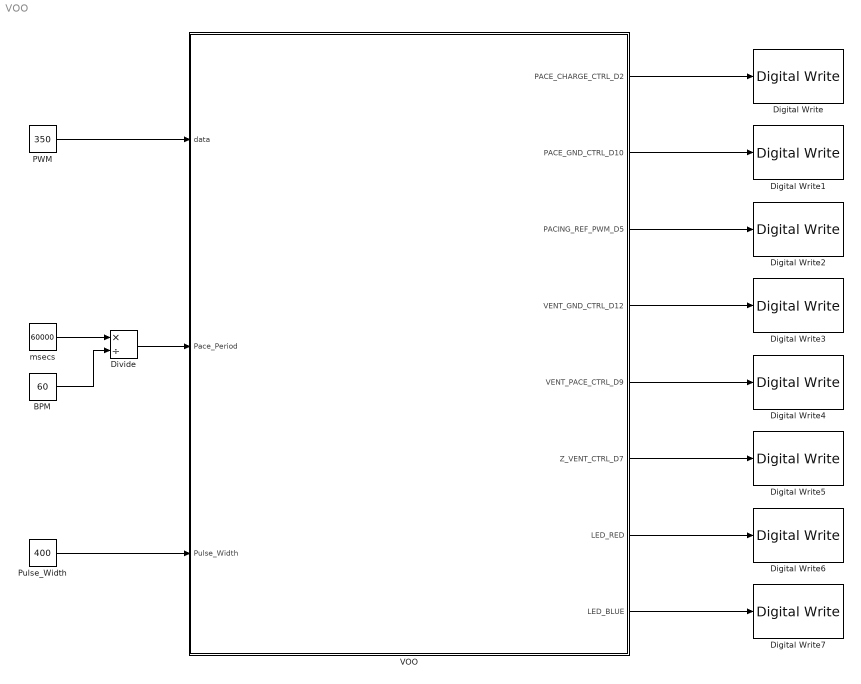
== stateflow chart VOO/VOO ==
  state Charging
    entry:
    PACING_REF_PWM_D5 = data;
    PACE_CHARGE_CTRL_D2 = 1;
    VENT_PACE_CTRL_D9 = 0;
    VENT_GND_CTRL_D12 = 1;
    PACE_GND_CTRL_D10 = 0;
    Z_VENT_CTRL_D7 = 0;
    LED_RED = 0;
    LED_BLUE = 1;
  state Pacing
    entry:
    PACING_REF_PWM_D5 = data;
    PACE_CHARGE_CTRL_D2 = 0;
    VENT_PACE_CTRL_D9 = 1;
    VENT_GND_CTRL_D12 = 0;
    PACE_GND_CTRL_D10 = 1;
    Z_VENT_CTRL_D7 = 0;
    LED_RED = 1;
    LED_BLUE = 0;
  (default) -> Charging
  Charging -> Pacing : [after(Pace_Period - Pulse_Width,msec)]
  Pacing -> Charging : [after(Pulse_Width,msec)]
  data: data input; PACE_CHARGE_CTRL_D2 output; PACE_GND_CTRL_D10 output; PACING_REF_PWM_D5 output; VENT_GND_CTRL_D12 output; VENT_PACE_CTRL_D9 output; Z_VENT_CTRL_D7 output; LED_RED output; LED_BLUE output; Pace_Period input; Pulse_Width input

/*
 * Academic License - for use in teaching, academic research, and meeting
 * course requirements at degree granting institutions only.  Not for
 * government, commercial, or other organizational use.
 *
 * File: VOO.c
 *
 * Code generated for Simulink model 'VOO'.
 *
 * Model version                  : 8.0
 * Simulink Coder version         : 23.2 (R2023b) 01-Aug-2023
 * C/C++ source code generated on : Sun Oct 15 20:08:29 2023
 *
 * Target selection: ert.tlc
 * Embedded hardware selection: ARM Compatible->ARM Cortex
 * Code generation objectives: Unspecified
 * Validation result: Not run
 */

#include "VOO.h"
#include "rtwtypes.h"
#include <math.h>

/* Named constants for Chart: '<Root>/VOO' */
#define VOO_IN_Charging                ((uint8_T)1U)
#define VOO_IN_Pacing                  ((uint8_T)2U)

/* Block signals (default storage) */
B_VOO_T VOO_B;

/* Block states (default storage) */
DW_VOO_T VOO_DW;

/* Real-time model */
static RT_MODEL_VOO_T VOO_M_;
RT_MODEL_VOO_T *const VOO_M = &VOO_M_;

/* Model step function */
void VOO_step(void)
{
  int32_T rtb_LED_BLUE;
  int32_T rtb_LED_RED;
  int32_T rtb_PACE_CHARGE_CTRL_D2;
  int32_T rtb_PACE_GND_CTRL_D10;
  int32_T rtb_VENT_GND_CTRL_D12;
  int32_T rtb_VENT_PACE_CTRL_D9;

  /* Chart: '<Root>/VOO' incorporates:
   *  Constant: '<Root>/BPM'
   *  Constant: '<Root>/PWM'
   *  Constant: '<Root>/Pulse_Width'
   *  Constant: '<Root>/msecs'
   *  Product: '<Root>/Divide'
   */
  if (VOO_DW.temporalCounter_i1 < MAX_uint32_T) {
    VOO_DW.temporalCounter_i1++;
  }

  if (VOO_DW.is_active_c1_VOO == 0U) {
    VOO_DW.is_active_c1_VOO = 1U;
    VOO_DW.temporalCounter_i1 = 0U;
    VOO_DW.is_c1_VOO = VOO_IN_Charging;
    VOO_B.PACING_REF_PWM_D5 = VOO_P.PWM_Value;
    rtb_PACE_CHARGE_CTRL_D2 = 1;
    rtb_VENT_PACE_CTRL_D9 = 0;
    rtb_VENT_GND_CTRL_D12 = 1;
    rtb_PACE_GND_CTRL_D10 = 0;
    rtb_LED_RED = 0;
    rtb_LED_BLUE = 1;
  } else if (VOO_DW.is_c1_VOO == VOO_IN_Charging) {
    rtb_PACE_CHARGE_CTRL_D2 = 1;
    rtb_VENT_PACE_CTRL_D9 = 0;
    rtb_VENT_GND_CTRL_D12 = 1;
    rtb_PACE_GND_CTRL_D10 = 0;
    rtb_LED_RED = 0;
    rtb_LED_BLUE = 1;
    if (VOO_DW.temporalCounter_i1 >= (uint32_T)ceil(VOO_P.msecs_Value /
         VOO_P.BPM_Value - VOO_P.Pulse_Width_Value)) {
      VOO_DW.temporalCounter_i1 = 0U;
      VOO_DW.is_c1_VOO = VOO_IN_Pacing;
      VOO_B.PACING_REF_PWM_D5 = VOO_P.PWM_Value;
      rtb_PACE_CHARGE_CTRL_D2 = 0;
      rtb_VENT_PACE_CTRL_D9 = 1;
      rtb_VENT_GND_CTRL_D12 = 0;
      rtb_PACE_GND_CTRL_D10 = 1;
      rtb_LED_RED = 1;
      rtb_LED_BLUE = 0;
    }
  } else {
    /* case IN_Pacing: */
    rtb_PACE_CHARGE_CTRL_D2 = 0;
    rtb_VENT_PACE_CTRL_D9 = 1;
    rtb_VENT_GND_CTRL_D12 = 0;
    rtb_PACE_GND_CTRL_D10 = 1;
    rtb_LED_RED = 1;
    rtb_LED_BLUE = 0;
    if (VOO_DW.temporalCounter_i1 >= (uint32_T)ceil(VOO_P.Pulse_Width_Value)) {
      VOO_DW.temporalCounter_i1 = 0U;
      VOO_DW.is_c1_VOO = VOO_IN_Charging;
      VOO_B.PACING_REF_PWM_D5 = VOO_P.PWM_Value;
      rtb_PACE_CHARGE_CTRL_D2 = 1;
      rtb_VENT_PACE_CTRL_D9 = 0;
      rtb_VENT_GND_CTRL_D12 = 1;
      rtb_PACE_GND_CTRL_D10 = 0;
      rtb_LED_RED = 0;
      rtb_LED_BLUE = 1;
    }
  }

  /* End of Chart: '<Root>/VOO' */

  /* MATLABSystem: '<Root>/Digital Write' */
  MW_digitalIO_write(VOO_DW.obj_h.MW_DIGITALIO_HANDLE, rtb_PACE_CHARGE_CTRL_D2
                     != 0);

  /* MATLABSystem: '<Root>/Digital Write1' */
  MW_digitalIO_write(VOO_DW.obj_j.MW_DIGITALIO_HANDLE, rtb_PACE_GND_CTRL_D10 !=
                     0);

  /* MATLABSystem: '<Root>/Digital Write2' */
  MW_digitalIO_write(VOO_DW.obj_b.MW_DIGITALIO_HANDLE, VOO_B.PACING_REF_PWM_D5
                     != 0.0);

  /* MATLABSystem: '<Root>/Digital Write3' */
  MW_digitalIO_write(VOO_DW.obj_l.MW_DIGITALIO_HANDLE, rtb_VENT_GND_CTRL_D12 !=
                     0);

  /* MATLABSystem: '<Root>/Digital Write4' */
  MW_digitalIO_write(VOO_DW.obj_ib.MW_DIGITALIO_HANDLE, rtb_VENT_PACE_CTRL_D9 !=
                     0);

  /* MATLABSystem: '<Root>/Digital Write5' */
  MW_digitalIO_write(VOO_DW.obj_i.MW_DIGITALIO_HANDLE, false);

  /* MATLABSystem: '<Root>/Digital Write6' */
  MW_digitalIO_write(VOO_DW.obj_n.MW_DIGITALIO_HANDLE, rtb_LED_RED != 0);

  /* MATLABSystem: '<Root>/Digital Write7' */
  MW_digitalIO_write(VOO_DW.obj.MW_DIGITALIO_HANDLE, rtb_LED_BLUE != 0);
}
